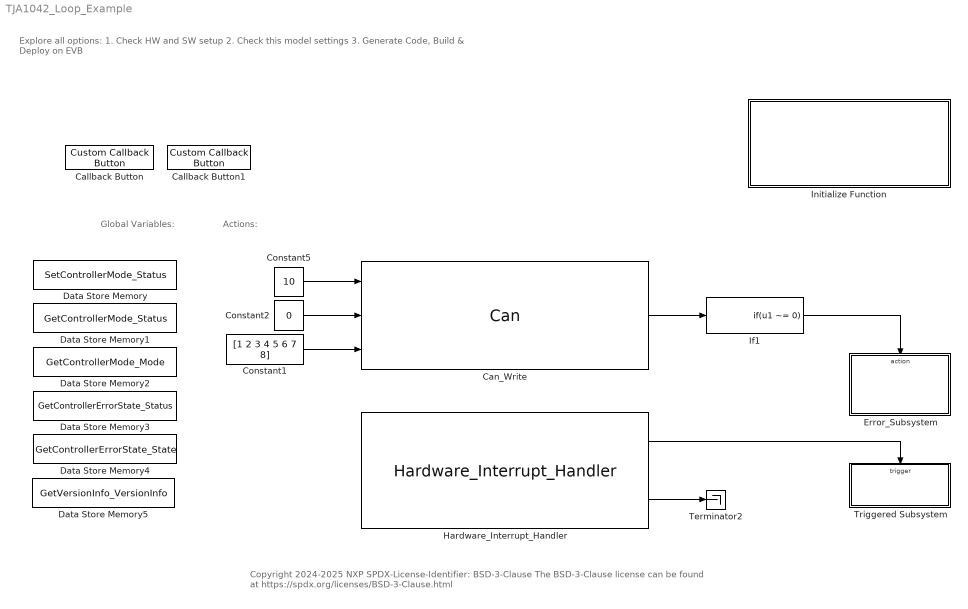
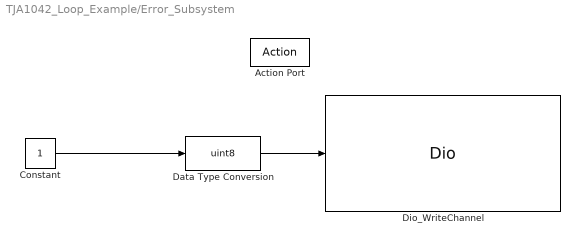
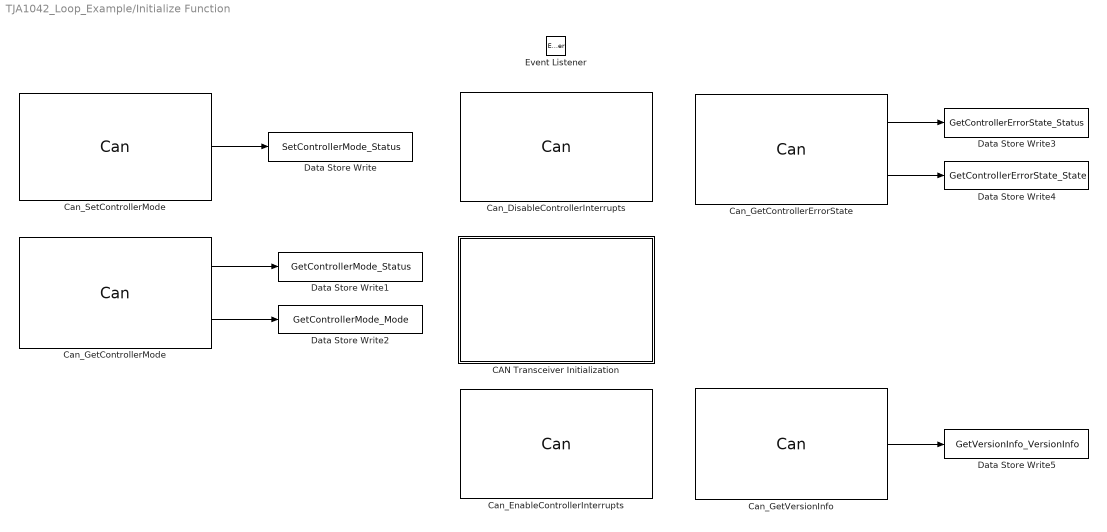
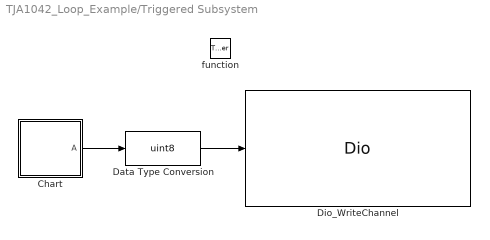
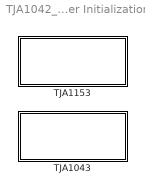
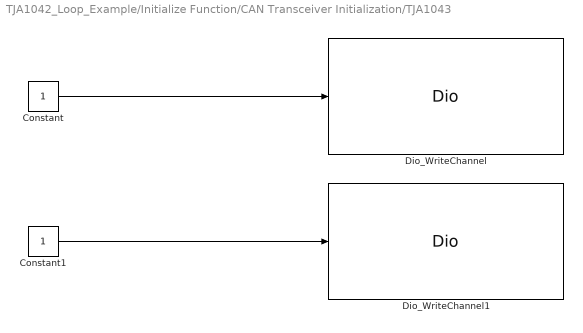
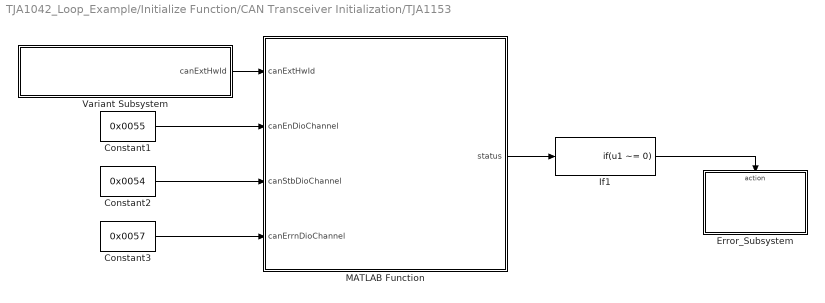
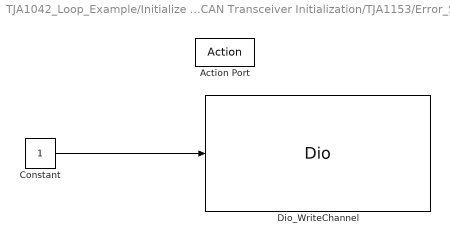
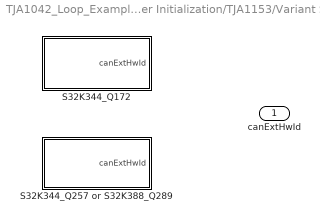
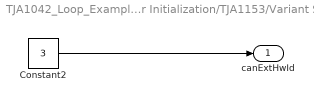
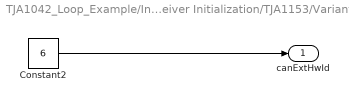
== stateflow chart TJA1042_Loop_Example/Triggered
Subsystem/Chart ==
  state A
  state A1
  (default) -> A
  A -> A1
  A1 -> A
  data: A output boolean [0..1]

== matlab function TJA1042_Loop_Example/Initialize Function/CAN Transceiver Initialization/TJA1153/MATLAB Function ==
function status = TJA1153_Init(canExtHwId, canEnDioChannel, canStbDioChannel, canErrnDioChannel)

	status = mbd_s32k3.common.nxp.can.TJA1153Transceiver.init(canExtHwId, canEnDioChannel, canStbDioChannel, canErrnDioChannel);

end

/*
 * File: TJA1042_Loop_Example.c
 *
 * Code generated for Simulink model 'TJA1042_Loop_Example'.
 *
 * Model version                   : 1.0
 * Simulink Coder version          : 24.1 (R2024a) 19-Nov-2023
 * MBDT for S32K3 Series Version  :  Version 1.6.0 (R2021a-R2024b) 27-Jan-2025
 * C/C++ source code generated on  : Sun Jul  6 17:24:43 2025
 *
 * Target selection: ert.tlc
 * Embedded hardware selection: ARM Compatible->ARM Cortex
 * Code generation objectives: Unspecified
 * Validation result: Not run
 */

#include "TJA1042_Loop_Example.h"
#include "rtwtypes.h"
#include "TJA1042_Loop_Example_private.h"
#include <math.h>
#include "rt_nonfinite.h"

/* Named constants for Chart: '<S3>/Chart' */
#define TJA1042_Loop_Example_IN_A      ((uint8_T)1U)
#define TJA1042_Loop_Example_IN_A1     ((uint8_T)2U)
#define TJA1042_Loop_IN_NO_ACTIVE_CHILD ((uint8_T)0U)

/* Block signals (default storage) */
B_TJA1042_Loop_Example_T TJA1042_Loop_Example_B;

/* Block states (default storage) */
DW_TJA1042_Loop_Example_T TJA1042_Loop_Example_DW;

/* Real-time model */
static RT_MODEL_TJA1042_Loop_Example_T TJA1042_Loop_Example_M_;
RT_MODEL_TJA1042_Loop_Example_T *const TJA1042_Loop_Example_M =
  &TJA1042_Loop_Example_M_;
void CanIf_TxConfirmation (PduIdType CanTxPduId)
{
  TJA1042_Loop_Example_B.Hardware_Interrupt_Handler_o2 = CanTxPduId;

#ifdef FMSTR_TX_HWOBJ

  uint8_t fmstrResult = 0u;
  fmstrResult = FMSTR_CanIsr(0u, 0u, 0u, NULL_PTR, CanTxPduId);
  if (fmstrResult) {
    return;
  }

#endif

  /* Output and update for function-call system: '<Root>/Triggered Subsystem' */
  {
    boolean_T rtb_A;

    /* S-Function (s32k3_dio): '<S3>/Dio_WriteChannel' */
    Dio_WriteChannel(DioConf_DioChannel_RGBLED0_BLUE,
                     TJA1042_Loop_Example_B.DataTypeConversion_k);

    /* Chart: '<S3>/Chart' */
    if (TJA1042_Loop_Example_DW.is_active_c1_TJA1042_Loop_Examp == 0U) {
      TJA1042_Loop_Example_DW.is_active_c1_TJA1042_Loop_Examp = 1U;
      rtb_A = true;
      TJA1042_Loop_Example_DW.is_c1_TJA1042_Loop_Example =
        TJA1042_Loop_Example_IN_A;
    } else if (TJA1042_Loop_Example_DW.is_c1_TJA1042_Loop_Example ==
               TJA1042_Loop_Example_IN_A) {
      rtb_A = false;
      TJA1042_Loop_Example_DW.is_c1_TJA1042_Loop_Example =
        TJA1042_Loop_Example_IN_A1;
    } else {
      /* case IN_A1: */
      rtb_A = true;
      TJA1042_Loop_Example_DW.is_c1_TJA1042_Loop_Example =
        TJA1042_Loop_Example_IN_A;
    }

    /* End of Chart: '<S3>/Chart' */

    /* DataTypeConversion: '<S3>/Data Type Conversion' */
    TJA1042_Loop_Example_B.DataTypeConversion_k = rtb_A;
  }
}

/* Model step function */
void TJA1042_Loop_Example_step(void)
{
  real_T tmp;

  /* S-Function (s32k3_can): '<Root>/Can_Write' incorporates:
   *  Constant: '<Root>/Constant1'
   *  Constant: '<Root>/Constant2'
   *  Constant: '<Root>/Constant5'
   */
  {
    Can_PduType pduInfo;
    pduInfo.id = TJA1042_Loop_Example_P.Constant5_Value;
    pduInfo.swPduHandle = TJA1042_Loop_Example_P.Constant2_Value;
    pduInfo.length = 8;
    pduInfo.sdu = &TJA1042_Loop_Example_P.Constant1_Value_a[0];
    TJA1042_Loop_Example_B.Can_Write = Can_43_FLEXCAN_Write
      (Can_43_FLEXCANConf_CanHardwareObject_CanHardwareObject_Can0_Tx_Interrupt,
       &pduInfo);
  }

  /* If: '<Root>/If1' */
  if (TJA1042_Loop_Example_B.Can_Write != 0) {
    /* Outputs for IfAction SubSystem: '<Root>/Error_Subsystem' incorporates:
     *  ActionPort: '<S1>/Action Port'
     */
    /* S-Function (s32k3_dio): '<S1>/Dio_WriteChannel' */
    Dio_WriteChannel(DioConf_DioChannel_RGBLED0_RED,
                     TJA1042_Loop_Example_B.DataTypeConversion);

    /* DataTypeConversion: '<S1>/Data Type Conversion' incorporates:
     *  Constant: '<S1>/Constant'
     */
    tmp = floor(TJA1042_Loop_Example_P.Constant_Value);
    if (rtIsNaN(tmp) || rtIsInf(tmp)) {
      tmp = 0.0;
    } else {
      tmp = fmod(tmp, 256.0);
    }

    /* DataTypeConversion: '<S1>/Data Type Conversion' */
    TJA1042_Loop_Example_B.DataTypeConversion = (uint8_T)(tmp < 0.0 ? (int32_T)
      (uint8_T)-(int8_T)(uint8_T)-tmp : (int32_T)(uint8_T)tmp);

    /* End of Outputs for SubSystem: '<Root>/Error_Subsystem' */
  }

  /* End of If: '<Root>/If1' */
}
